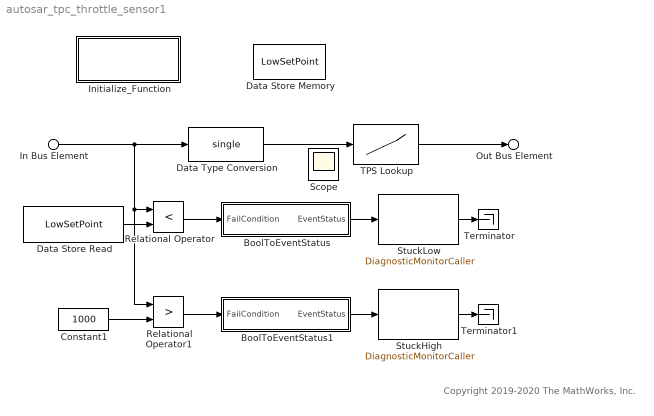
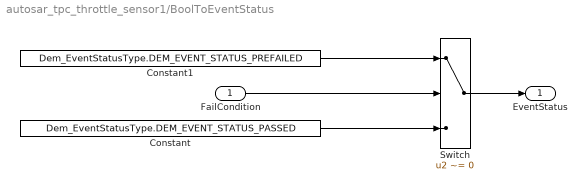
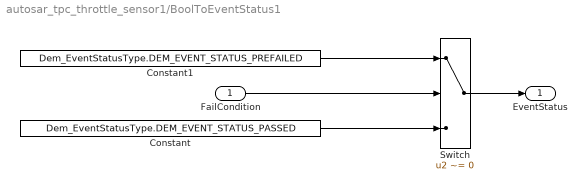
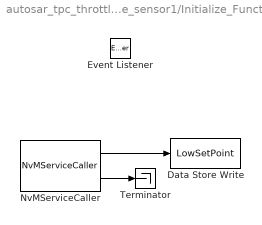
/*
 * Academic License - for use in teaching, academic research, and meeting
 * course requirements at degree granting institutions only.  Not for
 * government, commercial, or other organizational use.
 *
 * File: autosar_tpc_throttle_sensor1.c
 *
 * Code generated for Simulink model 'autosar_tpc_throttle_sensor1'.
 *
 * Model version                  : 4.1
 * Simulink Coder version         : 9.8 (R2022b) 13-May-2022
 * C/C++ source code generated on : Fri Nov 25 16:34:52 2022
 *
 * Target selection: autosar.tlc
 * Embedded hardware selection: Intel->x86-64 (Windows64)
 * Code generation objectives: Unspecified
 * Validation result: Not run
 */

#include "autosar_tpc_throttle_sensor1.h"
#include "Rte_Type.h"
#include "rtwtypes.h"
#include "look1_iflf_linlcpw.h"

/* Model step function */
void ThrottleSensor1_Step(void)
{
  Dem_EventStatusType tmp;

  /* Switch: '<S2>/Switch' incorporates:
   *  Constant: '<S2>/Constant'
   *  Constant: '<S2>/Constant1'
   *  Inport generated from: '<Root>/In Bus Element'
   *  RelationalOperator: '<Root>/Relational Operator1'
   */
  if (Rte_IRead_ThrottleSensor1_Step_TPS_HwIO_Value() > 1000) {
    tmp = DEM_EVENT_STATUS_PREFAILED;
  } else {
    tmp = DEM_EVENT_STATUS_PASSED;
  }

  /* End of Switch: '<S2>/Switch' */

  /* FunctionCaller: '<Root>/StuckHigh' */
  Rte_Call_S1StuckHigh_SetEventStatus(tmp);

  /* Switch: '<S1>/Switch' incorporates:
   *  Constant: '<S1>/Constant'
   *  Constant: '<S1>/Constant1'
   *  DataStoreRead: '<Root>/Data Store Read'
   *  Inport generated from: '<Root>/In Bus Element'
   *  RelationalOperator: '<Root>/Relational Operator'
   */
  if (Rte_IRead_ThrottleSensor1_Step_TPS_HwIO_Value() <
      *Rte_Pim_autosar_tpc_throttl_LowSetPoint()) {
    tmp = DEM_EVENT_STATUS_PREFAILED;
  } else {
    tmp = DEM_EVENT_STATUS_PASSED;
  }

  /* End of Switch: '<S1>/Switch' */

  /* FunctionCaller: '<Root>/StuckLow' */
  Rte_Call_S1StuckLow_SetEventStatus(tmp);

  /* Outport generated from: '<Root>/Out Bus Element' incorporates:
   *  DataTypeConversion: '<Root>/Data Type Conversion'
   *  Inport generated from: '<Root>/In Bus Element'
   *  Lookup_n-D: '<Root>/TPS Lookup'
   */
  Rte_IWrite_ThrottleSensor1_Step_TPS_Primary_Value(look1_iflf_linlcpw
    (Rte_IRead_ThrottleSensor1_Step_TPS_HwIO_Value(),
     (Rte_CData_TPSPrimaryPercent_LkupTbl())->BP1,
     (Rte_CData_TPSPrimaryPercent_LkupTbl())->Table, 10U));
}
